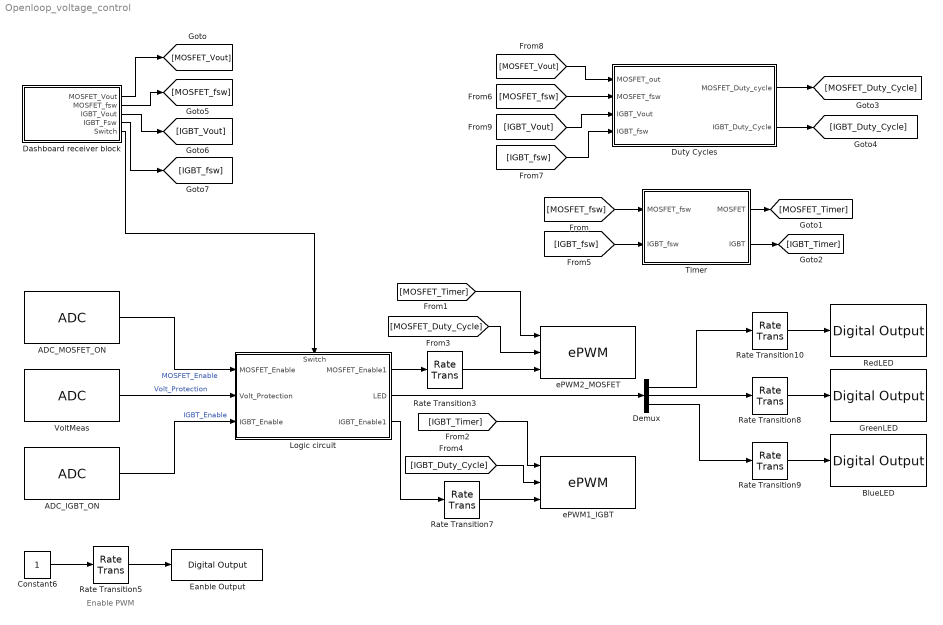
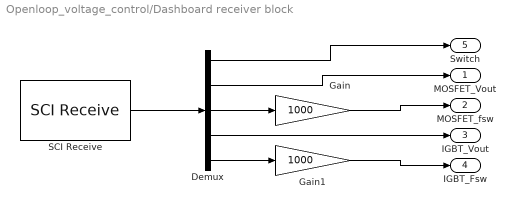
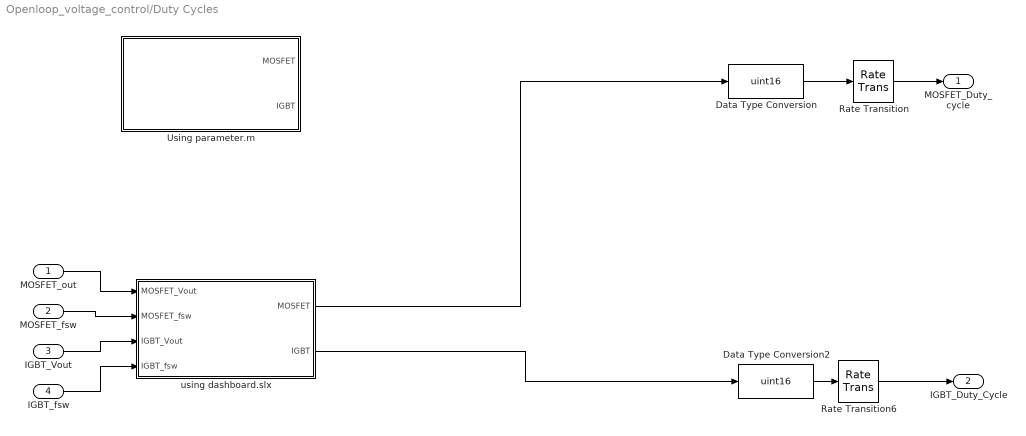
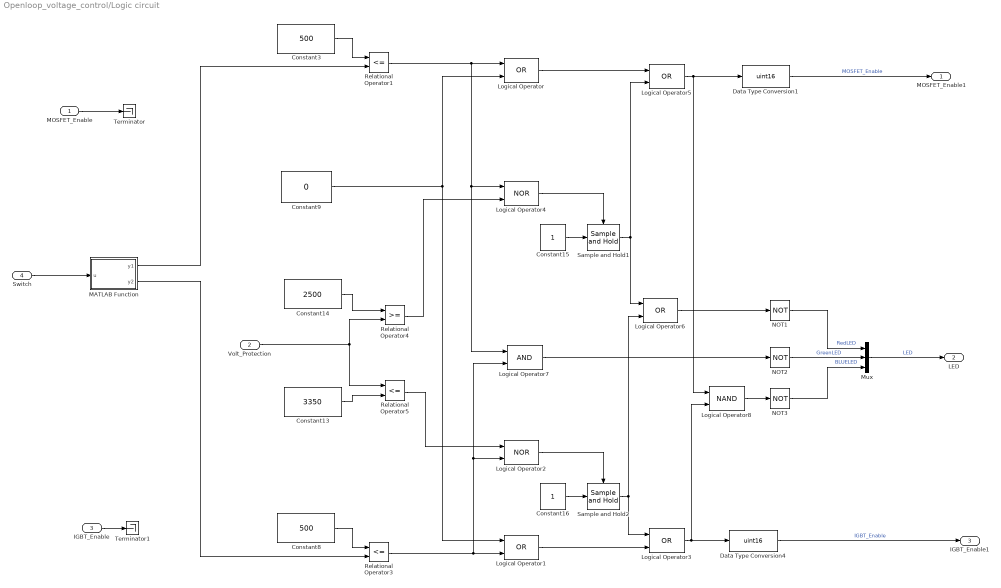
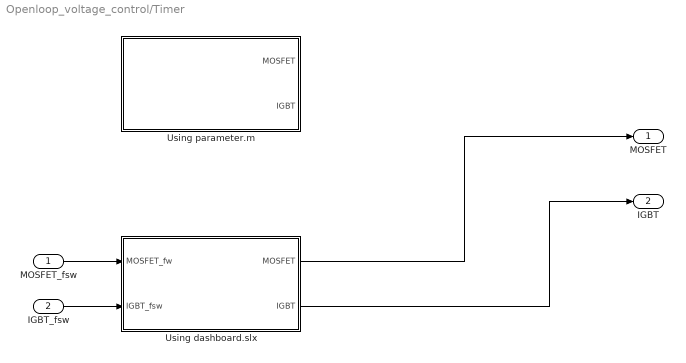
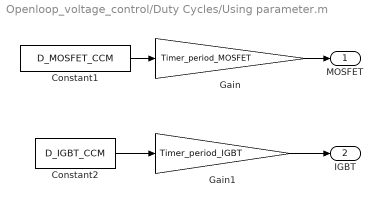
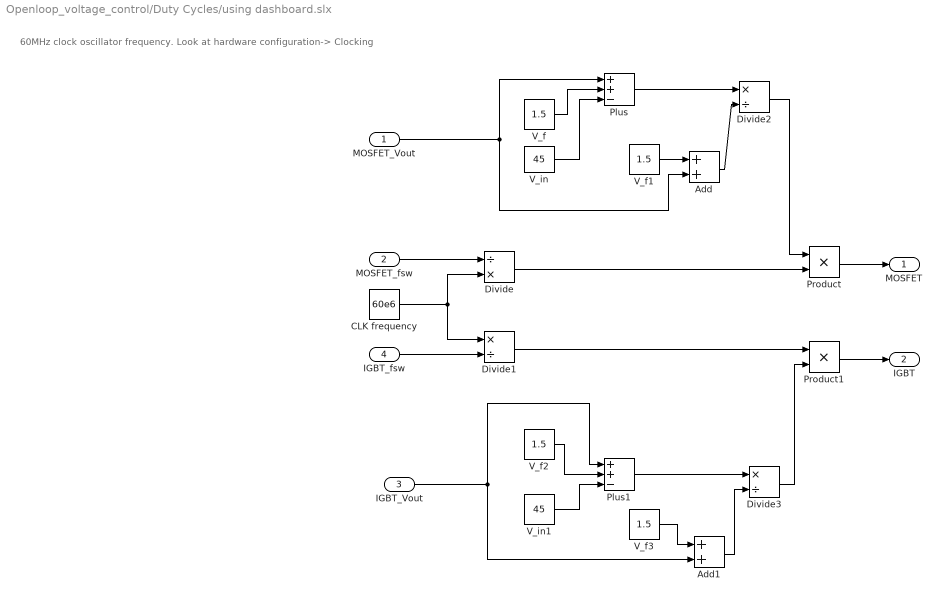
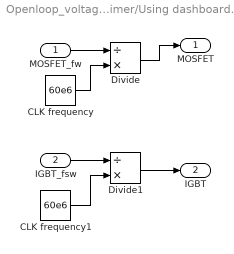
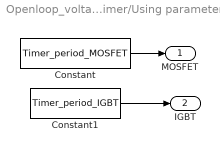
== matlab function Openloop_voltage_control/Logic circuit/MATLAB Function ==
function [y1,y2]= fcn(u)

if u==0;
    y1=1000;
    y2=1000;
elseif u == 1;
    y1=1000;
    y2=0;
elseif u==2; 
    y1=0;
    y2=1000;
else   
    y1=1000;
    y2=1000;
end

/*
 * Academic License - for use in teaching, academic research, and meeting
 * course requirements at degree granting institutions only.  Not for
 * government, commercial, or other organizational use.
 *
 * File: Openloop_voltage_control.c
 *
 * Code generated for Simulink model 'Openloop_voltage_control'.
 *
 * Model version                  : 5.45
 * Simulink Coder version         : 9.4 (R2020b) 29-Jul-2020
 * C/C++ source code generated on : Tue Aug 30 11:57:14 2022
 *
 * Target selection: ert.tlc
 * Embedded hardware selection: Texas Instruments->C2000
 * Code generation objectives: Unspecified
 * Validation result: Not run
 */

#include "Openloop_voltage_control.h"
#include "Openloop_voltage_control_private.h"

/* Block signals (default storage) */
B_Openloop_voltage_control_T Openloop_voltage_control_B;

/* Block states (default storage) */
DW_Openloop_voltage_control_T Openloop_voltage_control_DW;

/* Previous zero-crossings (trigger) states */
PrevZCX_Openloop_voltage_cont_T Openloop_voltage_contro_PrevZCX;

/* Real-time model */
static RT_MODEL_Openloop_voltage_con_T Openloop_voltage_control_M_;
RT_MODEL_Openloop_voltage_con_T *const Openloop_voltage_control_M =
  &Openloop_voltage_control_M_;
static void rate_monotonic_scheduler(void);
uint16_T MW_adcInitFlag = 0;

/*
 * Set which subrates need to run this base step (base rate always runs).
 * This function must be called prior to calling the model step function
 * in order to "remember" which rates need to run this base step.  The
 * buffering of events allows for overlapping preemption.
 */
void Openloop_voltage_control_SetEventsForThisBaseStep(boolean_T *eventFlags)
{
  /* Task runs when its counter is zero, computed via rtmStepTask macro */
  eventFlags[1] = ((boolean_T)rtmStepTask(Openloop_voltage_control_M, 1));
}

/*
 *   This function updates active task flag for each subrate
 * and rate transition flags for tasks that exchange data.
 * The function assumes rate-monotonic multitasking scheduler.
 * The function must be called at model base rate so that
 * the generated code self-manages all its subrates and rate
 * transition flags.
 */
static void rate_monotonic_scheduler(void)
{
  /* Compute which subrates run during the next base time step.  Subrates
   * are an integer multiple of the base rate counter.  Therefore, the subtask
   * counter is reset when it reaches its limit (zero means run).
   */
  (Openloop_voltage_control_M->Timing.TaskCounters.TID[1])++;
  if ((Openloop_voltage_control_M->Timing.TaskCounters.TID[1]) > 9) {/* Sample time: [0.01s, 0.0s] */
    Openloop_voltage_control_M->Timing.TaskCounters.TID[1] = 0;
  }
}

/* Model step function for TID0 */
void Openloop_voltage_control_step0(void) /* Sample time: [0.001s, 0.0s] */
{
  /* local block i/o variables */
  real_T rtb_Divide1;
  real_T rtb_Divide;
  uint16_T rtb_MOSFET_Enable;
  uint16_T rtb_DataTypeConversion;
  real_T rtb_Divide1_tmp;
  int16_T rtb_y1;
  int16_T rtb_y2;
  boolean_T rtb_LogicalOperator2;
  boolean_T rtb_LogicalOperator2_tmp;
  boolean_T rtb_LogicalOperator4;
  boolean_T rtb_RelationalOperator1;
  boolean_T rtb_RelationalOperator3;

  {                                    /* Sample time: [0.001s, 0.0s] */
    rate_monotonic_scheduler();
  }

  /* S-Function (c28xsci_rx): '<S1>/SCI Receive' */
  {
    int i;
    int errFlg = NOERROR;
    unsigned int recbuff[5];
    for (i = 0; i < 5; i++)
      recbuff[i] = 0;

    /* Getting Data Head */
    {
      unsigned int recHead;
      int cnt = 0;
      int i = 0;
      char *expHead = "S";
      while (i < 1) {
        scia_rcv(&recHead, 1, SHORTLOOP, 1);
        if (recHead == expHead[i]) {
          i++;
        } else {
          i = 0;
        }

        if (cnt++ > 16) {
          errFlg = TIMEOUT;
          goto RXERRA;
        }
      }
    }

    /* End of Getting Data Head */

    /* Receiving data */
    errFlg = scia_rcv(recbuff, 10, LONGLOOP, 2);
    if (errFlg != NOERROR)
      goto RXERRA;

    /* Getting Data Tail */
    {
      int i;
      char *expTail = "E";
      unsigned int recTail[1];
      scia_rcv(recTail, 1, LONGLOOP, 1);
      for (i = 0; i< 1; i++) {
        if (expTail[i] != recTail[i]) {
          errFlg = DATAERR;
          goto RXERRA;
        }
      }
    }

    /* End of Getting Data Tail */
    memcpy( &Openloop_voltage_control_B.SCIReceive[0], recbuff, 5);
   RXERRA:
    asm(" NOP");
  }

  /* MATLAB Function: '<S3>/MATLAB Function' */
  switch (Openloop_voltage_control_B.SCIReceive[0]) {
   case 0U:
    rtb_y1 = 1000;
    rtb_y2 = 1000;
    break;

   case 1U:
    rtb_y1 = 1000;
    rtb_y2 = 0;
    break;

   case 2U:
    rtb_y1 = 0;
    rtb_y2 = 1000;
    break;

   default:
    rtb_y1 = 1000;
    rtb_y2 = 1000;
    break;
  }

  /* End of MATLAB Function: '<S3>/MATLAB Function' */

  /* RelationalOperator: '<S3>/Relational Operator1' incorporates:
   *  Constant: '<S3>/Constant3'
   */
  rtb_RelationalOperator1 = (Openloop_voltage_control_P.Constant3_Value <=
    (uint16_T)rtb_y1);

  /* S-Function (c2802xadc): '<Root>/VoltMeas' */
  {
    /*  Internal Reference Voltage : Fixed scale 0 to 3.3 V range.  */
    /*  External Reference Voltage : Allowable ranges of VREFHI(ADCINA0) = 3.3 and VREFLO(tied to ground) = 0  */
    AdcRegs.ADCSOCFRC1.bit.SOC8 = 1;

    /* Wait for the period of Sampling window and EOC result to be latched after trigger */
    asm(" RPT #22 || NOP");
    Openloop_voltage_control_B.Volt_Protection = (AdcResult.ADCRESULT8);
  }

  /* Logic: '<S3>/Logical Operator4' incorporates:
   *  Constant: '<S3>/Constant14'
   *  RelationalOperator: '<S3>/Relational Operator4'
   */
  rtb_LogicalOperator4 = ((!rtb_RelationalOperator1) &&
    (Openloop_voltage_control_P.Constant14_Value <
     Openloop_voltage_control_B.Volt_Protection));

  /* Outputs for Triggered SubSystem: '<S3>/Sample and Hold1' incorporates:
   *  TriggerPort: '<S8>/Trigger'
   */
  if (rtb_LogicalOperator4 &&
      (Openloop_voltage_contro_PrevZCX.SampleandHold1_Trig_ZCE != POS_ZCSIG)) {
    /* Inport: '<S8>/In' incorporates:
     *  Constant: '<S3>/Constant15'
     */
    Openloop_voltage_control_B.In_g =
      Openloop_voltage_control_P.Constant15_Value;
  }

  Openloop_voltage_contro_PrevZCX.SampleandHold1_Trig_ZCE = rtb_LogicalOperator4;

  /* End of Outputs for SubSystem: '<S3>/Sample and Hold1' */

  /* Logic: '<S3>/Logical Operator5' incorporates:
   *  Constant: '<S3>/Constant9'
   *  Logic: '<S3>/Logical Operator'
   */
  rtb_LogicalOperator4 = (rtb_RelationalOperator1 ||
    Openloop_voltage_control_P.Constant9_Value ||
    Openloop_voltage_control_B.In_g);

  /* RelationalOperator: '<S3>/Relational Operator3' incorporates:
   *  Constant: '<S3>/Constant8'
   */
  rtb_RelationalOperator3 = (Openloop_voltage_control_P.Constant8_Value <=
    (uint16_T)rtb_y2);

  /* Logic: '<S3>/Logical Operator2' incorporates:
   *  Constant: '<S3>/Constant13'
   *  Logic: '<S3>/Logical Operator7'
   *  RelationalOperator: '<S3>/Relational Operator5'
   */
  rtb_LogicalOperator2_tmp = !rtb_RelationalOperator3;
  rtb_LogicalOperator2 = ((Openloop_voltage_control_B.Volt_Protection >
    Openloop_voltage_control_P.Constant13_Value) && rtb_LogicalOperator2_tmp);

  /* Outputs for Triggered SubSystem: '<S3>/Sample and Hold2' incorporates:
   *  TriggerPort: '<S9>/Trigger'
   */
  if (rtb_LogicalOperator2 &&
      (Openloop_voltage_contro_PrevZCX.SampleandHold2_Trig_ZCE != POS_ZCSIG)) {
    /* Inport: '<S9>/In' incorporates:
     *  Constant: '<S3>/Constant16'
     */
    Openloop_voltage_control_B.In = Openloop_voltage_control_P.Constant16_Value;
  }

  Openloop_voltage_contro_PrevZCX.SampleandHold2_Trig_ZCE = rtb_LogicalOperator2;

  /* End of Outputs for SubSystem: '<S3>/Sample and Hold2' */

  /* Logic: '<S3>/Logical Operator3' incorporates:
   *  Constant: '<S3>/Constant9'
   *  Logic: '<S3>/Logical Operator1'
   */
  rtb_RelationalOperator3 = (Openloop_voltage_control_B.In ||
    (Openloop_voltage_control_P.Constant9_Value || rtb_RelationalOperator3));

  /* Logic: '<S3>/NOT1' incorporates:
   *  Logic: '<S3>/Logical Operator8'
   *  Logic: '<S3>/NOT3'
   */
  Openloop_voltage_control_B.RedLED = (rtb_LogicalOperator4 &&
    rtb_RelationalOperator3);

  /* S-Function (c280xgpio_do): '<Root>/BlueLED' */
  {
    if (Openloop_voltage_control_B.RedLED)
      GpioDataRegs.GPASET.bit.GPIO12 = 1;
    else
      GpioDataRegs.GPACLEAR.bit.GPIO12 = 1;
  }

  /* Logic: '<S3>/NOT1' incorporates:
   *  Logic: '<S3>/Logical Operator7'
   *  Logic: '<S3>/NOT2'
   */
  Openloop_voltage_control_B.RedLED = ((!rtb_RelationalOperator1) ||
    rtb_LogicalOperator2_tmp);

  /* S-Function (c280xgpio_do): '<Root>/GreenLED' */
  {
    if (Openloop_voltage_control_B.RedLED)
      GpioDataRegs.GPASET.bit.GPIO19 = 1;
    else
      GpioDataRegs.GPACLEAR.bit.GPIO19 = 1;
  }

  /* Logic: '<S3>/NOT1' incorporates:
   *  Logic: '<S3>/Logical Operator6'
   */
  Openloop_voltage_control_B.RedLED = ((!Openloop_voltage_control_B.In_g) &&
    (!Openloop_voltage_control_B.In));

  /* S-Function (c280xgpio_do): '<Root>/RedLED' */
  {
    if (Openloop_voltage_control_B.RedLED)
      GpioDataRegs.GPBSET.bit.GPIO34 = 1;
    else
      GpioDataRegs.GPBCLEAR.bit.GPIO34 = 1;
  }

  /* Product: '<S10>/Divide1' incorporates:
   *  Gain: '<S1>/Gain1'
   *  Product: '<S6>/Divide1'
   */
  rtb_Divide1_tmp = (real_T)((uint32_T)Openloop_voltage_control_P.Gain1_Gain *
    Openloop_voltage_control_B.SCIReceive[4]) * 0.015625;

  /* Product: '<S10>/Divide1' incorporates:
   *  Constant: '<S10>/CLK frequency1'
   */
  rtb_Divide1 = Openloop_voltage_control_P.CLKfrequency1_Value / rtb_Divide1_tmp;

  /* Product: '<S10>/Divide' incorporates:
   *  Constant: '<S6>/V_f3'
   *  Sum: '<S6>/Add1'
   */
  rtb_Divide = Openloop_voltage_control_P.V_f3_Value + (real_T)
    Openloop_voltage_control_B.SCIReceive[3];

  /* DataTypeConversion: '<S2>/Data Type Conversion2' incorporates:
   *  Constant: '<S6>/CLK frequency'
   *  Constant: '<S6>/V_f2'
   *  Constant: '<S6>/V_in1'
   *  Product: '<S6>/Divide1'
   *  Product: '<S6>/Divide3'
   *  Product: '<S6>/Product1'
   *  Sum: '<S6>/Plus1'
   */
  rtb_Divide1_tmp = floor((((real_T)Openloop_voltage_control_B.SCIReceive[3] +
    Openloop_voltage_control_P.V_f2_Value) -
    Openloop_voltage_control_P.V_in1_Value) / rtb_Divide *
    (Openloop_voltage_control_P.CLKfrequency_Value / rtb_Divide1_tmp));
  if (rtIsNaN(rtb_Divide1_tmp) || rtIsInf(rtb_Divide1_tmp)) {
    rtb_Divide1_tmp = 0.0;
  } else {
    rtb_Divide1_tmp = fmod(rtb_Divide1_tmp, 65536.0);
  }

  /* DataTypeConversion: '<S3>/Data Type Conversion1' incorporates:
   *  DataTypeConversion: '<S2>/Data Type Conversion2'
   */
  rtb_MOSFET_Enable = rtb_Divide1_tmp < 0.0 ? (uint16_T)-(int16_T)(uint16_T)
    -rtb_Divide1_tmp : (uint16_T)rtb_Divide1_tmp;

  /* DataTypeConversion: '<S2>/Data Type Conversion' incorporates:
   *  DataTypeConversion: '<S3>/Data Type Conversion4'
   */
  rtb_DataTypeConversion = rtb_RelationalOperator3;

  /* S-Function (c2802xpwm): '<Root>/ePWM1_IGBT' */
  {
    EPwm1Regs.TBPRD = (uint16_T)(rtb_Divide1);
  }

  /*-- Update CMPA value for ePWM1 --*/
  {
    EPwm1Regs.CMPA.half.CMPA = (uint16_T)(rtb_MOSFET_Enable);
  }

  EPwm1Regs.AQCSFRC.bit.CSFA = rtb_DataTypeConversion;

  /* Product: '<S10>/Divide' incorporates:
   *  Gain: '<S1>/Gain'
   *  Product: '<S6>/Divide'
   */
  rtb_Divide1_tmp = (real_T)((uint32_T)Openloop_voltage_control_P.Gain_Gain *
    Openloop_voltage_control_B.SCIReceive[2]) * 0.015625;

  /* Product: '<S10>/Divide' incorporates:
   *  Constant: '<S10>/CLK frequency'
   */
  rtb_Divide = Openloop_voltage_control_P.CLKfrequency_Value_e / rtb_Divide1_tmp;

  /* DataTypeConversion: '<S2>/Data Type Conversion' incorporates:
   *  Constant: '<S6>/CLK frequency'
   *  Constant: '<S6>/V_f'
   *  Constant: '<S6>/V_f1'
   *  Constant: '<S6>/V_in'
   *  Product: '<S6>/Divide'
   *  Product: '<S6>/Divide2'
   *  Product: '<S6>/Product'
   *  Sum: '<S6>/Add'
   *  Sum: '<S6>/Plus'
   */
  rtb_Divide1_tmp = floor((((real_T)Openloop_voltage_control_B.SCIReceive[1] +
    Openloop_voltage_control_P.V_f_Value) -
    Openloop_voltage_control_P.V_in_Value) /
    (Openloop_voltage_control_P.V_f1_Value + (real_T)
     Openloop_voltage_control_B.SCIReceive[1]) *
    (Openloop_voltage_control_P.CLKfrequency_Value / rtb_Divide1_tmp));
  if (rtIsNaN(rtb_Divide1_tmp) || rtIsInf(rtb_Divide1_tmp)) {
    rtb_Divide1_tmp = 0.0;
  } else {
    rtb_Divide1_tmp = fmod(rtb_Divide1_tmp, 65536.0);
  }

  /* DataTypeConversion: '<S2>/Data Type Conversion' */
  rtb_DataTypeConversion = rtb_Divide1_tmp < 0.0 ? (uint16_T)-(int16_T)(uint16_T)
    -rtb_Divide1_tmp : (uint16_T)rtb_Divide1_tmp;

  /* DataTypeConversion: '<S3>/Data Type Conversion1' */
  rtb_MOSFET_Enable = rtb_LogicalOperator4;

  /* S-Function (c2802xpwm): '<Root>/ePWM2_MOSFET' */
  {
    EPwm2Regs.TBPRD = (uint16_T)(rtb_Divide);
  }

  /*-- Update CMPA value for ePWM2 --*/
  {
    EPwm2Regs.CMPA.half.CMPA = (uint16_T)(rtb_DataTypeConversion);
  }

  EPwm2Regs.AQCSFRC.bit.CSFA = rtb_MOSFET_Enable;

  /* S-Function (c2802xadc): '<Root>/ADC_IGBT_ON' */
  {
    /*  Internal Reference Voltage : Fixed scale 0 to 3.3 V range.  */
    /*  External Reference Voltage : Allowable ranges of VREFHI(ADCINA0) = 3.3 and VREFLO(tied to ground) = 0  */
    AdcRegs.ADCSOCFRC1.bit.SOC2 = 1;

    /* Wait for the period of Sampling window and EOC result to be latched after trigger */
    asm(" RPT #22 || NOP");
    Openloop_voltage_control_B.IGBT_Enable = (AdcResult.ADCRESULT2);
  }

  /* S-Function (c2802xadc): '<Root>/ADC_MOSFET_ON' */
  {
    /*  Internal Reference Voltage : Fixed scale 0 to 3.3 V range.  */
    /*  External Reference Voltage : Allowable ranges of VREFHI(ADCINA0) = 3.3 and VREFLO(tied to ground) = 0  */
    AdcRegs.ADCSOCFRC1.bit.SOC0 = 1;

    /* Wait for the period of Sampling window and EOC result to be latched after trigger */
    asm(" RPT #22 || NOP");
    Openloop_voltage_control_B.MOSFET_Enable = (AdcResult.ADCRESULT0);
  }

  /* RateTransition: '<Root>/Rate Transition5' */
  Openloop_voltage_control_B.RateTransition5 =
    Openloop_voltage_control_DW.RateTransition5_Buffer0;

  /* S-Function (c280xgpio_do): '<Root>/Eanble Output' */
  {
    if (Openloop_voltage_control_B.RateTransition5)
      GpioDataRegs.GPASET.bit.GPIO4 = 1;
    else
      GpioDataRegs.GPACLEAR.bit.GPIO4 = 1;
  }
}

/* Model step function for TID1 */
void Openloop_voltage_control_step1(void) /* Sample time: [0.01s, 0.0s] */
{
  /* RateTransition: '<Root>/Rate Transition5' */
  Openloop_voltage_control_DW.RateTransition5_Buffer0 =
    Openloop_voltage_control_P.Constant6_Value;
}
